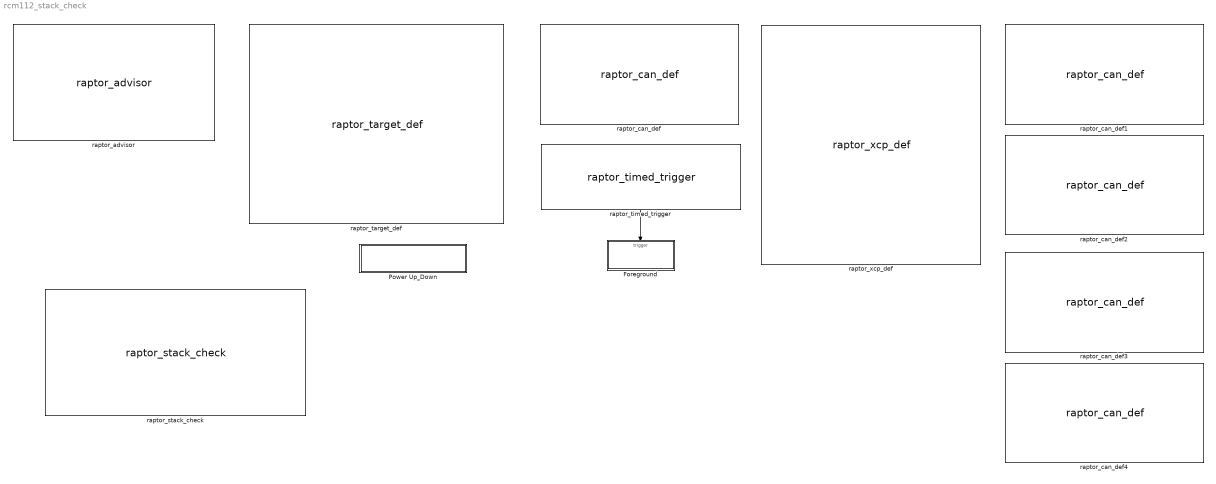
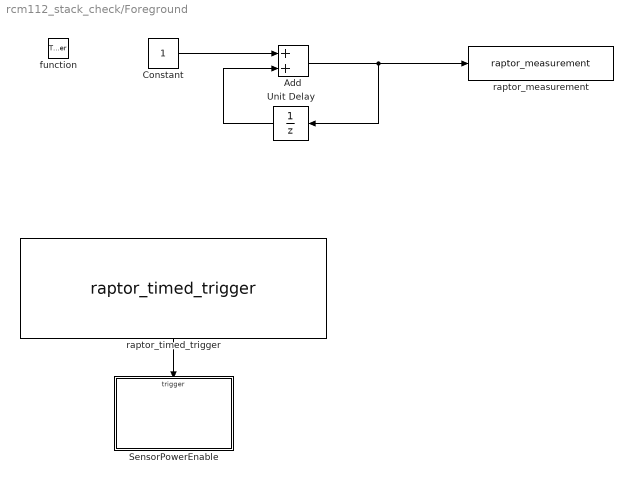
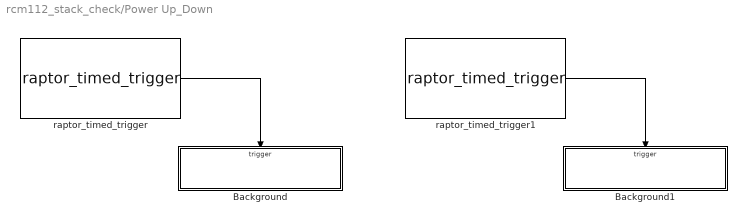
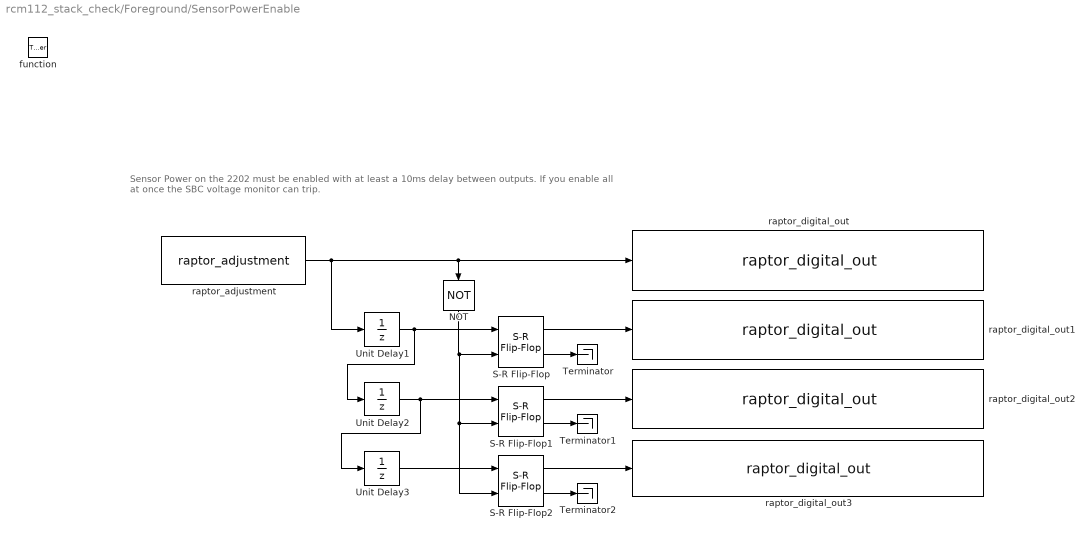
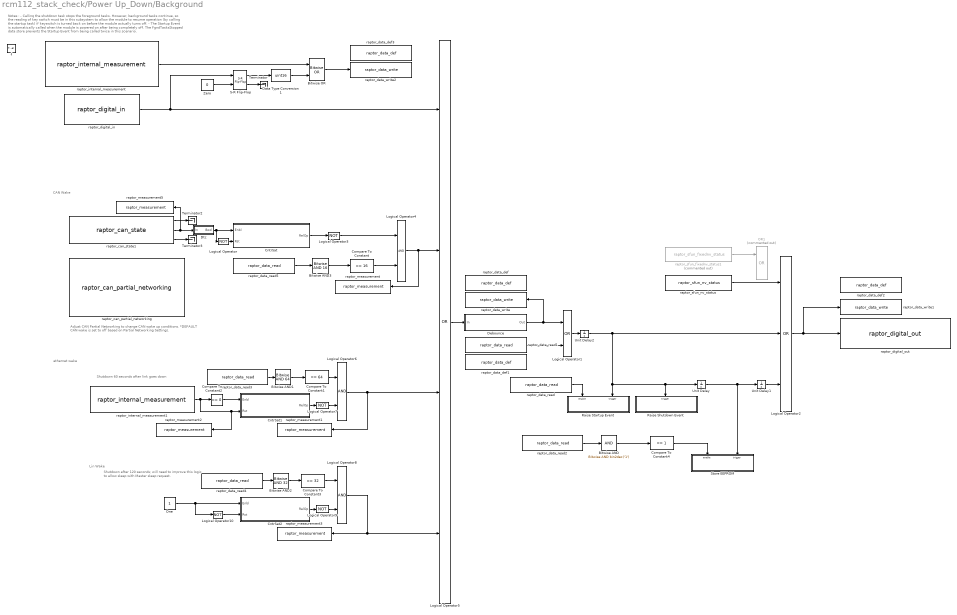
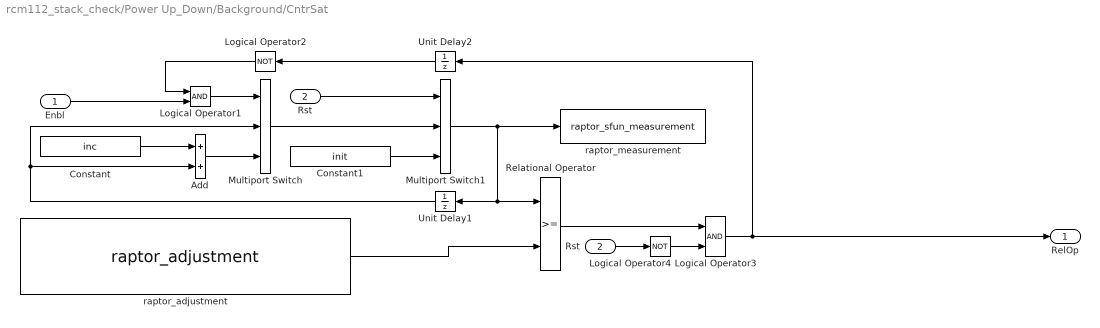
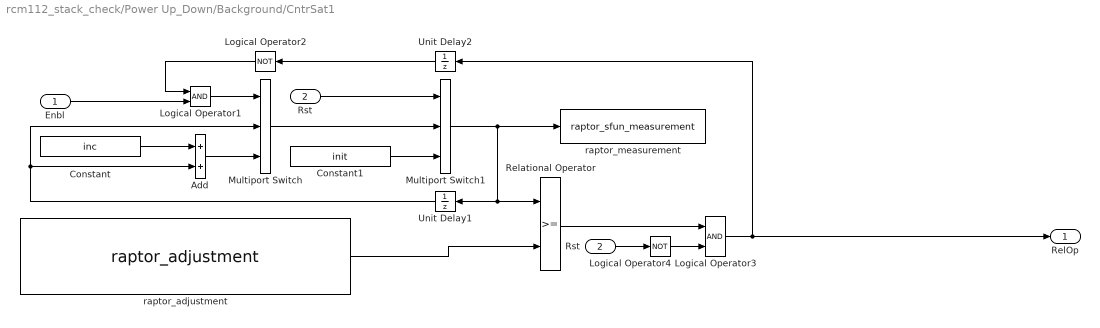
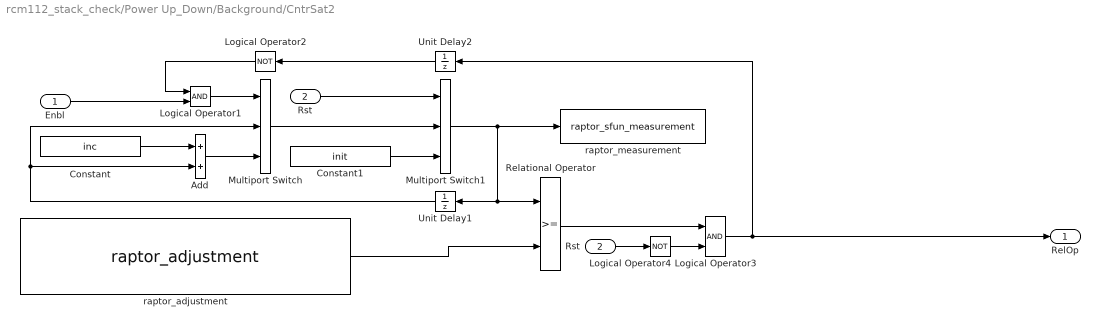
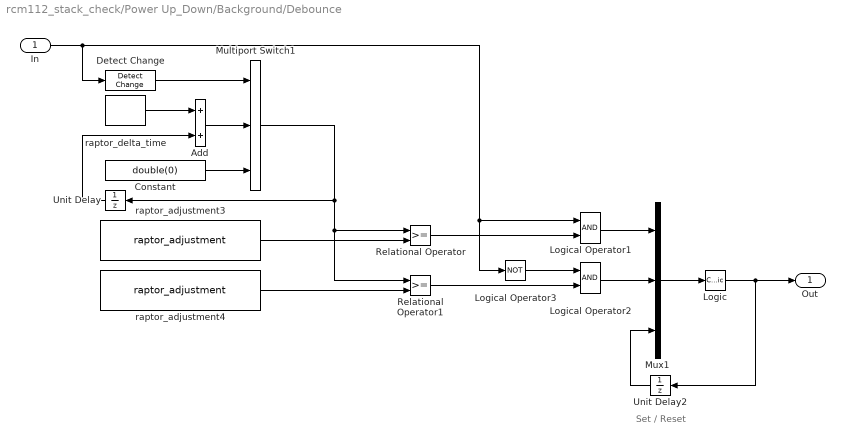
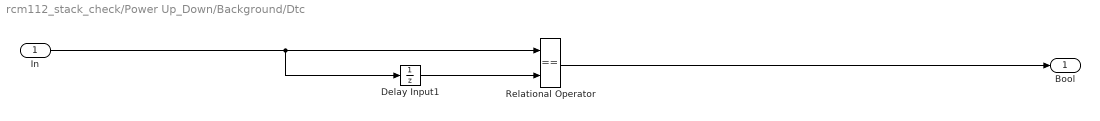
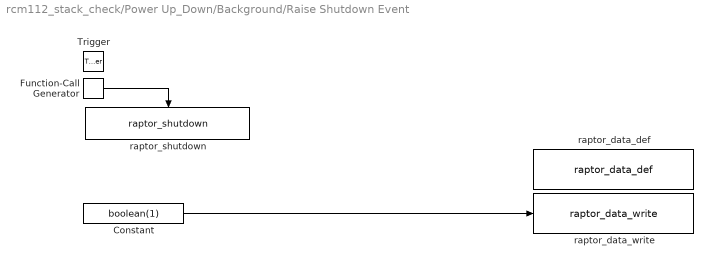
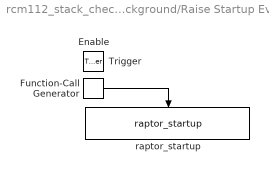
== system rcm112_stack_check/Power Up_Down/Background1 ==
  note: Notes : - Calling the shutdown task stops the foreground tasks. However, background tasks continue, so the reading of key switch must be in this subsystem to allow the module to resume operation (by calling the startup task) if keyswitch is turned back on before the module actually turns off. - The Startup Event is automatically called when the module is powered on after being completely off. The FgndTasksStopped data store prevents the Startup Event from being called twice in this scenario.
  f : TriggerPort  TriggerType=function-call  VariantControl=Variant  ZeroCross=off
  raptor_data_read1 : Raptor_lib/Data Storage/raptor_data_read  dataName='MPRD_EN'  dataShape=Scalar  idxSource=Input  idxRow=1  idxCol=1
  raptor_digital_out1 : Raptor_lib/Input & Output/raptor_digital_out  resourceValues=LSO1|MPRD_EN|POWER_HOLD|SENSOR_POWER_EN|(None)  resource=MPRD_EN  driverTypeValues=Enable  driverType=Enable
  wires:
  raptor_data_read1/1 -> raptor_digital_out1/1

== system rcm112_stack_check/Power Up_Down/Background/Store EEPROM ==
  Enable : EnablePort
  Trigger : TriggerPort  TriggerType=falling  VariantControl=Variant
  Function-Call Generator : simulink/Ports & Subsystems/Function-Call Generator  sample_time=-1  numberOfIterations=1  DisallowWideOutput=off
  raptor_store_nv : Raptor_lib/Data Storage/raptor_store_nv  null=0
  wires:
  Function-Call Generator/1 -> raptor_store_nv/Trigger

/*
 * File: rcm112_stack_check.c
 *
 * Code generated for Simulink model 'rcm112_stack_check'.
 *
 * Model version                  : 9.19
 * Simulink Coder version         : 9.9 (R2023a) 19-Nov-2022
 * C/C++ source code generated on : Wed Mar 27 13:31:34 2024
 *
 * Target selection: raptor.tlc
 * Embedded hardware selection: Freescale->MPC55xx
 * Code generation objectives: Unspecified
 * Validation result: Not run
 */

#include "rcm112_stack_check.h"
#include "rcm112_stack_check_private.h"
#include "rtwtypes.h"
#include "zero_crossing_types.h"
#include <string.h>

/* Block states (default storage) */
D_Work_rcm112_stack_check rcm112_stack_check_DWork;

/* Previous zero-crossings (trigger) states */
PrevZCSigStates_rcm112_stack_check rcm112_stack_check_PrevZCSigState;

/* Block : rcm112_stack_check/Foreground/raptor_timed_trigger */
void Timer_FGND_10MS_SensPower(void)
{
  /* Timer_FGND_10MS_SensPower  ------   Task_Core0_Fgnd  */
  {
    {
      rcm112_stack_check_SensorPowerEnable();
    }
  }
}

/* Block : rcm112_stack_check/raptor_timed_trigger */
void Timer_Foreground(void)
{
  /* Timer_Foreground  ------   Foreground  */
  {
    {
      rcm112_stack_check_Foreground();
    }
  }
}

/* Block : rcm112_stack_check/Power Up_Down/raptor_timed_trigger */
void Timer_Background_50MS(void)
{
  /* Timer_Background_50MS  ------   Background  */
  {
    {
      rcm112_stack_check_Background();
    }
  }
}

/* Block : rcm112_stack_check/Power Up_Down/raptor_timed_trigger1 */
void Timer_Background_50MS_SBN1H(void)
{
  /* Timer_Background_50MS_SBN1H  ------   Background  */
  {
    {
      rcm112_stack_check_Background1();
    }
  }
}

/* System initialize for function-call system: '<S2>/Background' */
void rcm112_stack_check_Background_Init(void)
{
  /* Start for S-Function (raptor_sfun_digital_in): '<S8>/raptor_digital_in' */

  /* S-Function Block: WAKE_INPUT1 */
  {
  }

  /* Start for S-Function (raptor_sfun_internal_measurement): '<S8>/raptor_internal_measurement1' */

  /* S-Function Block: EthLinkStatus */
  {
  }

  /* Start for S-Function (raptor_sfun_internal_measurement): '<S8>/raptor_internal_measurement' */

  /* S-Function Block: WAKE_SOURCE */
  {
  }

  /* Start for S-Function (raptor_sfun_digital_out): '<S8>/raptor_digital_out' */

  /* S-Function Block: POWER_HOLD */
  {
  }

  /* InitializeConditions for UnitDelay: '<S8>/Unit Delay2' */
  rcm112_stack_check_DWork.UnitDelay2_DSTATE_m = true;

  /* InitializeConditions for S-Function (raptor_sfun_delta_time): '<S18>/raptor_delta_time' */
  rcm112_stack_check_DWork.raptor_delta_time_DWORK1 = Bios_Rtos_GetTicksUs()/
    1000;

  /* InitializeConditions for UnitDelay: '<S18>/Unit Delay2' */
  rcm112_stack_check_DWork.UnitDelay2_DSTATE_l = true;
}

/* System reset for function-call system: '<S2>/Background' */
void rcm112_stack_check_Background_Reset(void)
{
  /* InitializeConditions for UnitDelay: '<S8>/Unit Delay2' */
  rcm112_stack_check_DWork.UnitDelay2_DSTATE_m = true;

  /* InitializeConditions for S-Function (raptor_sfun_delta_time): '<S18>/raptor_delta_time' */
  rcm112_stack_check_DWork.raptor_delta_time_DWORK1 = Bios_Rtos_GetTicksUs()/
    1000;

  /* InitializeConditions for UnitDelay: '<S18>/Unit Delay2' */
  rcm112_stack_check_DWork.UnitDelay2_DSTATE_l = true;
}

/* Output and update for function-call system: '<S2>/Background' */
void rcm112_stack_check_Background(void)
{
  /* local block i/o variables */
  real_T rtb_raptor_delta_time;
  uint32_T rtb_raptor_can_state1_o2;
  uint32_T rtb_raptor_can_state1_o3;
  int16_T rtb_raptor_can_state1_o1;
  boolean_T rtb_raptor_internal_measurement1;
  real_T rtb_MultiportSwitch1;
  uint32_T rtb_MultiportSwitch1_i;
  uint32_T rtb_MultiportSwitch1_l;
  uint32_T rtb_MultiportSwitch1_o;
  uint16_T rtb_raptor_internal_measurement;
  boolean_T rtb_Logic;
  boolean_T rtb_Logic_i_idx_0;
  boolean_T rtb_LogicalOperator2_o;
  boolean_T rtb_LogicalOperator3_c4;
  boolean_T rtb_LogicalOperator3_p;
  boolean_T rtb_LogicalOperator4_l;
  boolean_T rtb_LogicalOperator5;
  boolean_T rtb_LogicalOperator6;
  boolean_T rtb_LogicalOperator8;
  boolean_T rtb_RelationalOperator;
  boolean_T rtb_UnitDelay2;
  boolean_T rtb_UnitDelay_c;
  boolean_T rtb_raptor_digital_in;

  /* UnitDelay: '<S8>/Unit Delay2' */
  rtb_UnitDelay2 = rcm112_stack_check_DWork.UnitDelay2_DSTATE_m;

  /* Outputs for Triggered SubSystem: '<S8>/Raise Shutdown Event' incorporates:
   *  TriggerPort: '<S20>/Trigger'
   */
  if ((!rcm112_stack_check_DWork.UnitDelay2_DSTATE_m) &&
      (rcm112_stack_check_PrevZCSigState.RaiseShutdownEvent_Trig_ZCE !=
       ZERO_ZCSIG)) {
    /* S-Function (raptor_sfun_data_write): '<S20>/raptor_data_write' incorporates:
     *  Constant: '<S20>/Constant'
     */
    FgndTasksStopped_Data() = true;

    /* S-Function (fcgen): '<S20>/Function-Call Generator' incorporates:
     *  SubSystem: '<S20>/raptor_shutdown'
     */
    /* S-Function (raptor_sfun_shutdown): '<S25>/raptor_data_write' */
    /* S-Function Block */
    {
      extern void App_Shutdown(void);
      App_Shutdown();
    }

    /* End of Outputs for S-Function (fcgen): '<S20>/Function-Call Generator' */
  }

  /* End of UnitDelay: '<S8>/Unit Delay2' */
  rcm112_stack_check_PrevZCSigState.RaiseShutdownEvent_Trig_ZCE = rtb_UnitDelay2;

  /* End of Outputs for SubSystem: '<S8>/Raise Shutdown Event' */
  /* Outputs for Enabled and Triggered SubSystem: '<S8>/Raise Startup Event' incorporates:
   *  EnablePort: '<S21>/Enable'
   *  TriggerPort: '<S21>/Trigger'
   */
  if (FgndTasksStopped_Data() && (rtb_UnitDelay2 &&
       (rcm112_stack_check_PrevZCSigState.RaiseStartupEvent_Trig_ZCE !=
        POS_ZCSIG))) {
    /* S-Function (fcgen): '<S21>/Function-Call Generator' incorporates:
     *  SubSystem: '<S21>/raptor_startup'
     */
    /* S-Function (raptor_sfun_startup): '<S26>/raptor_data_write' */
    /* S-Function Block */
    {
      extern void App_Startup(void);
      App_Startup();
    }

    /* End of Outputs for S-Function (fcgen): '<S21>/Function-Call Generator' */
  }

  /* End of S-Function (raptor_sfun_data_read): '<S8>/raptor_data_read' */

  /* Outputs for Triggered SubSystem: '<S8>/Raise Shutdown Event' incorporates:
   *  TriggerPort: '<S20>/Trigger'
   */
  rcm112_stack_check_PrevZCSigState.RaiseStartupEvent_Trig_ZCE = rtb_UnitDelay2;

  /* End of Outputs for SubSystem: '<S8>/Raise Shutdown Event' */
  /* End of Outputs for SubSystem: '<S8>/Raise Startup Event' */
  /* UnitDelay: '<S8>/Unit Delay' */
  rtb_UnitDelay_c = rcm112_stack_check_DWork.UnitDelay_DSTATE_a;

  /* Outputs for Enabled and Triggered SubSystem: '<S8>/Store EEPROM' incorporates:
   *  EnablePort: '<S23>/Enable'
   *  TriggerPort: '<S23>/Trigger'
   */
  /* RelationalOperator: '<S17>/Compare' incorporates:
   *  Constant: '<S17>/Constant'
   *  S-Function (raptor_sfun_data_read): '<S8>/raptor_data_read2'
   *  S-Function (sfix_bitop): '<S8>/Bitwise AND'
   *  UnitDelay: '<S8>/Unit Delay'
   */
  if (((((uint16_T)Wake_Source_Data()) & 1) == 1) &&
      ((!rcm112_stack_check_DWork.UnitDelay_DSTATE_a) &&
       (rcm112_stack_check_PrevZCSigState.StoreEEPROM_Trig_ZCE != ZERO_ZCSIG)))
  {
    /* S-Function (fcgen): '<S23>/Function-Call Generator' incorporates:
     *  SubSystem: '<S23>/raptor_store_nv'
     */
    /* S-Function (raptor_sfun_store_nv): '<S27>/raptor_data_write' */
    /* S-Function Block */
    {
      App_EE_Store();
    }

    /* End of Outputs for S-Function (fcgen): '<S23>/Function-Call Generator' */
  }

  /* End of RelationalOperator: '<S17>/Compare' */
  rcm112_stack_check_PrevZCSigState.StoreEEPROM_Trig_ZCE = rtb_UnitDelay_c;

  /* End of Outputs for SubSystem: '<S8>/Store EEPROM' */

  /* S-Function (raptor_sfun_digital_in): '<S8>/raptor_digital_in' */
  /* S-Function Block: WAKE_INPUT1 */
  {
    {
      sint32 KEYSW_M_value;
      Bios_Adc_GetValue(KEYSW_M, &KEYSW_M_value);
      rtb_raptor_digital_in = ((KEYSW_M_value > 200) ? 1 : 0);
    }
  }

  /* S-Function (raptor_sfun_can_state): '<S8>/raptor_can_state1' */
  /* S-Function Block: <S8>/raptor_can_state1 */
  {
    rtb_raptor_can_state1_o1 = Bios_Can_GetError(BIOS_MCAN_5);
    Bios_Can_GetBusState(BIOS_MCAN_5, &rtb_raptor_can_state1_o2,
                         &rtb_raptor_can_state1_o3);
  }

  /* Logic: '<S8>/Logical Operator' incorporates:
   *  Logic: '<S10>/Logical Operator1'
   *  MultiPortSwitch: '<S10>/Multiport Switch1'
   *  RelationalOperator: '<S19>/Relational Operator'
   *  UnitDelay: '<S19>/Delay Input1'
   */
  rtb_LogicalOperator4_l = (rtb_raptor_can_state1_o2 !=
    rcm112_stack_check_DWork.DelayInput1_DSTATE);

  /* MultiPortSwitch: '<S10>/Multiport Switch1' incorporates:
   *  Constant: '<S10>/Constant1'
   *  Logic: '<S10>/Logical Operator4'
   */
  rtb_RelationalOperator = !rtb_LogicalOperator4_l;
  if (rtb_RelationalOperator) {
    /* MultiPortSwitch: '<S10>/Multiport Switch' incorporates:
     *  Constant: '<S10>/Constant'
     *  Logic: '<S10>/Logical Operator1'
     *  Sum: '<S10>/Add'
     *  UnitDelay: '<S10>/Unit Delay1'
     *  UnitDelay: '<S10>/Unit Delay2'
     */
    if (rcm112_stack_check_DWork.UnitDelay2_DSTATE_j || rtb_LogicalOperator4_l)
    {
      rtb_MultiportSwitch1_i = rcm112_stack_check_DWork.UnitDelay1_DSTATE;
    } else {
      rtb_MultiportSwitch1_i = rcm112_stack_check_DWork.UnitDelay1_DSTATE + 1U;
    }

    /* End of MultiPortSwitch: '<S10>/Multiport Switch' */
  } else {
    rtb_MultiportSwitch1_i = 0U;
  }

  /* Logic: '<S10>/Logical Operator3' incorporates:
   *  RelationalOperator: '<S10>/Relational Operator'
   *  S-Function (raptor_sfun_adjustment): '<S10>/raptor_adjustment'
   */
  rtb_RelationalOperator = ((rtb_MultiportSwitch1_i >=
    (Wake_CAN5_SleepDelayTime_Data())) && rtb_RelationalOperator);

  /* Logic: '<S8>/Logical Operator4' incorporates:
   *  Constant: '<S13>/Constant'
   *  Logic: '<S8>/Logical Operator3'
   *  RelationalOperator: '<S13>/Compare'
   *  S-Function (raptor_sfun_data_read): '<S8>/raptor_data_read5'
   *  S-Function (sfix_bitop): '<S8>/Bitwise AND3'
   */
  rtb_LogicalOperator4_l = ((!rtb_RelationalOperator) && ((((uint16_T)
    Wake_Source_Data()) & 16) == 16));

  /* S-Function (raptor_sfun_internal_measurement): '<S8>/raptor_internal_measurement1' */
  /* S-Function Block: EthLinkStatus */
  {
    {
      uint8 Bios_Eth_GetLinkStatus (void);
      rtb_raptor_internal_measurement1 = (boolean_T)Bios_Eth_GetLinkStatus();
    }
  }

  /* MultiPortSwitch: '<S11>/Multiport Switch1' incorporates:
   *  Constant: '<S11>/Constant1'
   */
  if (!rtb_raptor_internal_measurement1) {
    /* MultiPortSwitch: '<S11>/Multiport Switch' incorporates:
     *  Constant: '<S11>/Constant'
     *  Logic: '<S11>/Logical Operator1'
     *  RelationalOperator: '<S15>/Compare'
     *  Sum: '<S11>/Add'
     *  UnitDelay: '<S11>/Unit Delay1'
     *  UnitDelay: '<S11>/Unit Delay2'
     */
    if (rcm112_stack_check_DWork.UnitDelay2_DSTATE_b ||
        rtb_raptor_internal_measurement1) {
      rtb_MultiportSwitch1_l = rcm112_stack_check_DWork.UnitDelay1_DSTATE_m;
    } else {
      rtb_MultiportSwitch1_l = rcm112_stack_check_DWork.UnitDelay1_DSTATE_m + 1U;
    }

    /* End of MultiPortSwitch: '<S11>/Multiport Switch' */
  } else {
    rtb_MultiportSwitch1_l = 0U;
  }

  /* End of MultiPortSwitch: '<S11>/Multiport Switch1' */
  /* Logic: '<S11>/Logical Operator3' incorporates:
   *  Logic: '<S11>/Logical Operator4'
   *  RelationalOperator: '<S11>/Relational Operator'
   *  S-Function (raptor_sfun_adjustment): '<S11>/raptor_adjustment'
   */
  rtb_LogicalOperator3_c4 = ((rtb_MultiportSwitch1_l >=
    (Wake_ETH_SleepDelayTime_Data())) && (!rtb_raptor_internal_measurement1));

  /* Logic: '<S8>/Logical Operator6' incorporates:
   *  Constant: '<S14>/Constant'
   *  Logic: '<S8>/Logical Operator7'
   *  RelationalOperator: '<S14>/Compare'
   *  S-Function (raptor_sfun_data_read): '<S8>/raptor_data_read3'
   *  S-Function (sfix_bitop): '<S8>/Bitwise AND1'
   */
  rtb_LogicalOperator6 = (((((uint16_T)Wake_Source_Data()) & 64) == 64) &&
    (!rtb_LogicalOperator3_c4));

  /* MultiPortSwitch: '<S12>/Multiport Switch1' incorporates:
   *  Constant: '<S12>/Constant1'
   */
  if (!rcm112_stack_check_ConstB.LogicalOperator10) {
    /* MultiPortSwitch: '<S12>/Multiport Switch' incorporates:
     *  Constant: '<S12>/Constant'
     *  Sum: '<S12>/Add'
     *  UnitDelay: '<S12>/Unit Delay1'
     *  UnitDelay: '<S12>/Unit Delay2'
     */
    if (rcm112_stack_check_DWork.UnitDelay2_DSTATE_n) {
      rtb_MultiportSwitch1_o = rcm112_stack_check_DWork.UnitDelay1_DSTATE_g;
    } else {
      rtb_MultiportSwitch1_o = rcm112_stack_check_DWork.UnitDelay1_DSTATE_g + 1U;
    }

    /* End of MultiPortSwitch: '<S12>/Multiport Switch' */
  } else {
    rtb_MultiportSwitch1_o = 0U;
  }

  /* End of MultiPortSwitch: '<S12>/Multiport Switch1' */
  /* Logic: '<S12>/Logical Operator3' incorporates:
   *  RelationalOperator: '<S12>/Relational Operator'
   *  S-Function (raptor_sfun_adjustment): '<S12>/raptor_adjustment'
   */
  rtb_LogicalOperator3_p = ((rtb_MultiportSwitch1_o >=
    (Wake_LIN2_SleepDelayTime_Data())) &&
    rcm112_stack_check_ConstB.LogicalOperator4);

  /* Logic: '<S8>/Logical Operator8' incorporates:
   *  Constant: '<S16>/Constant'
   *  Logic: '<S8>/Logical Operator9'
   *  RelationalOperator: '<S16>/Compare'
   *  S-Function (raptor_sfun_data_read): '<S8>/raptor_data_read4'
   *  S-Function (sfix_bitop): '<S8>/Bitwise AND2'
   */
  rtb_LogicalOperator8 = (((((uint16_T)Wake_Source_Data()) & 32) == 32) &&
    (!rtb_LogicalOperator3_p));

  /* Logic: '<S8>/Logical Operator5' */
  rtb_LogicalOperator5 = (rtb_raptor_digital_in || rtb_LogicalOperator4_l ||
    rtb_LogicalOperator6 || rtb_LogicalOperator8);

  /* S-Function (raptor_sfun_delta_time): '<S18>/raptor_delta_time' */
  {
    rtb_raptor_delta_time = (raptor_GetDeltaTime_ms((uint32_T*)
      &rcm112_stack_check_DWork.raptor_delta_time_DWORK1) * 0.001);
  }

  /* MultiPortSwitch: '<S18>/Multiport Switch1' incorporates:
   *  Constant: '<S18>/Constant'
   *  RelationalOperator: '<S24>/FixPt Relational Operator'
   *  Sum: '<S18>/Add'
   *  UnitDelay: '<S18>/Unit Delay'
   *  UnitDelay: '<S24>/Delay Input1'
   */
  if (rtb_LogicalOperator5 == rcm112_stack_check_DWork.DelayInput1_DSTATE_h) {
    rtb_MultiportSwitch1 = rtb_raptor_delta_time +
      rcm112_stack_check_DWork.UnitDelay_DSTATE_j;
  } else {
    rtb_MultiportSwitch1 = 0.0;
  }

  /* End of MultiPortSwitch: '<S18>/Multiport Switch1' */
  /* UnitDelay: '<S18>/Unit Delay2' */
  rtb_LogicalOperator2_o = rcm112_stack_check_DWork.UnitDelay2_DSTATE_l;

  /* CombinatorialLogic: '<S18>/Logic' incorporates:
   *  Logic: '<S18>/Logical Operator1'
   *  Logic: '<S18>/Logical Operator2'
   *  Logic: '<S18>/Logical Operator3'
   *  RelationalOperator: '<S18>/Relational Operator'
   *  RelationalOperator: '<S18>/Relational Operator1'
   *  S-Function (raptor_sfun_adjustment): '<S18>/raptor_adjustment3'
   *  S-Function (raptor_sfun_adjustment): '<S18>/raptor_adjustment4'
   */
  rtb_Logic = rcm112_stack_check_ConstP.Logic_table[((((uint32_T)
    (rtb_LogicalOperator5 && (rtb_MultiportSwitch1 >= (KeySwHiTimeThr_Data()))) <<
    1) + (uint32_T)((!rtb_LogicalOperator5) && (rtb_MultiportSwitch1 >=
    (KeySwLoTimeThr_Data())))) << 1) + rtb_LogicalOperator2_o];

  /* S-Function (raptor_sfun_data_write): '<S8>/raptor_data_write' */
  KeySw_Bgnd_Data() = rtb_Logic;

  /* S-Function (raptor_sfun_nv_status): '<S8>/raptor_sfun_nv_status' */
  /* S-Function Block */
  {
    rtb_LogicalOperator2_o = (EEPROM_State_Data() == EE_STORE_IN_PROGESS);
  }

  /* Logic: '<S8>/Logical Operator2' incorporates:
   *  UnitDelay: '<S8>/Unit Delay1'
   */
  rtb_LogicalOperator2_o = (rtb_LogicalOperator2_o || rtb_UnitDelay2 ||
    rcm112_stack_check_DWork.UnitDelay1_DSTATE_f);

  /* S-Function (raptor_sfun_data_write): '<S8>/raptor_data_write1' */
  MPRD_EN_Data() = rtb_LogicalOperator2_o;

  /* S-Function (raptor_sfun_internal_measurement): '<S8>/raptor_internal_measurement' */
  /* S-Function Block: WAKE_SOURCE */
  {
    extern uint16 Bios_Mcu_GetWakeUpReason(void);
    rtb_raptor_internal_measurement = (uint16_t)Bios_Mcu_GetWakeUpReason();
  }

  /* CombinatorialLogic: '<S22>/Logic' incorporates:
   *  Memory: '<S22>/Memory'
   */
  rtb_Logic_i_idx_0 = rcm112_stack_check_ConstP.pooled42[((uint32_T)
    rtb_raptor_digital_in << 2) +
    rcm112_stack_check_DWork.Memory_PreviousInput_c];

  /* S-Function (sfix_bitop): '<S8>/Bitwise OR' incorporates:
   *  DataTypeConversion: '<S8>/Data Type Conversion1'
   */
  rtb_raptor_internal_measurement |= rtb_Logic_i_idx_0;

  /* S-Function (raptor_sfun_data_write): '<S8>/raptor_data_write2' */
  Wake_Source_Data() = rtb_raptor_internal_measurement;

  /* S-Function (raptor_sfun_digital_out): '<S8>/raptor_digital_out' */
  /* S-Function Block: POWER_HOLD */
  {
    {
      static uint8_T prevInput = 0U;
      if (rtb_LogicalOperator2_o == 0U && prevInput == 1U) {
        Module_Shutdown(1);
      }

      prevInput = rtb_LogicalOperator2_o;
    }
  }

  /* S-Function (raptor_sfun_measurement): '<S8>/raptor_measurement' */
  CANWakeIndicator_Data() = rtb_LogicalOperator4_l;

  /* S-Function (raptor_sfun_measurement): '<S8>/raptor_measurement1' */
  EthWakeIndicator_Data() = rtb_LogicalOperator6;

  /* S-Function (raptor_sfun_measurement): '<S8>/raptor_measurement2' */
  EthLinkStatus_Data() = rtb_raptor_internal_measurement1;

  /* S-Function (raptor_sfun_measurement): '<S8>/raptor_measurement3' */
  LINWakeIndicator_Data() = rtb_LogicalOperator8;

  /* S-Function (raptor_sfun_measurement): '<S8>/raptor_measurement5' */
  Wake_CAN5_RxCount_Data() = rtb_raptor_can_state1_o2;

  /* S-Function (raptor_sfun_measurement): '<S10>/raptor_measurement' */
  Wake_CAN5_SleepDelayTTmr_Data() = rtb_MultiportSwitch1_i;

  /* S-Function (raptor_sfun_measurement): '<S11>/raptor_measurement' */
  Wake_ETH_SleepDelayTTmr_Data() = rtb_MultiportSwitch1_l;

  /* S-Function (raptor_sfun_measurement): '<S12>/raptor_measurement' */
  Wake_LIN2_SleepDelayTTmr_Data() = rtb_MultiportSwitch1_o;

  /* Logic: '<S8>/Logical Operator1' incorporates:
   *  S-Function (raptor_sfun_data_read): '<S8>/raptor_data_read1'
   */
  rtb_raptor_digital_in = (rtb_Logic || KeepModuleOn_Data());

  /* Update for UnitDelay: '<S8>/Unit Delay2' */
  rcm112_stack_check_DWork.UnitDelay2_DSTATE_m = rtb_raptor_digital_in;

  /* Update for UnitDelay: '<S8>/Unit Delay' */
  rcm112_stack_check_DWork.UnitDelay_DSTATE_a = rtb_UnitDelay2;

  /* Update for UnitDelay: '<S19>/Delay Input1' */
  rcm112_stack_check_DWork.DelayInput1_DSTATE = rtb_raptor_can_state1_o2;

  /* Update for UnitDelay: '<S10>/Unit Delay2' */
  rcm112_stack_check_DWork.UnitDelay2_DSTATE_j = rtb_RelationalOperator;

  /* Update for UnitDelay: '<S10>/Unit Delay1' */
  rcm112_stack_check_DWork.UnitDelay1_DSTATE = rtb_MultiportSwitch1_i;

  /* Update for UnitDelay: '<S11>/Unit Delay2' */
  rcm112_stack_check_DWork.UnitDelay2_DSTATE_b = rtb_LogicalOperator3_c4;

  /* Update for UnitDelay: '<S11>/Unit Delay1' */
  rcm112_stack_check_DWork.UnitDelay1_DSTATE_m = rtb_MultiportSwitch1_l;

  /* Update for UnitDelay: '<S12>/Unit Delay2' */
  rcm112_stack_check_DWork.UnitDelay2_DSTATE_n = rtb_LogicalOperator3_p;

  /* Update for UnitDelay: '<S12>/Unit Delay1' */
  rcm112_stack_check_DWork.UnitDelay1_DSTATE_g = rtb_MultiportSwitch1_o;

  /* Update for UnitDelay: '<S24>/Delay Input1' */
  rcm112_stack_check_DWork.DelayInput1_DSTATE_h = rtb_LogicalOperator5;

  /* Update for UnitDelay: '<S18>/Unit Delay' */
  rcm112_stack_check_DWork.UnitDelay_DSTATE_j = rtb_MultiportSwitch1;

  /* Update for UnitDelay: '<S18>/Unit Delay2' */
  rcm112_stack_check_DWork.UnitDelay2_DSTATE_l = rtb_Logic;

  /* Update for UnitDelay: '<S8>/Unit Delay1' */
  rcm112_stack_check_DWork.UnitDelay1_DSTATE_f = rtb_UnitDelay_c;

  /* Update for Memory: '<S22>/Memory' */
  rcm112_stack_check_DWork.Memory_PreviousInput_c = rtb_Logic_i_idx_0;
}

/* System initialize for function-call system: '<S2>/Background1' */
void rcm112_stack_check_Background1_Init(void)
{
  /* Start for S-Function (raptor_sfun_digital_out): '<S9>/raptor_digital_out1' */

  /* S-Function Block: MPRD_EN */
  {
  }
}

/* Output and update for function-call system: '<S2>/Background1' */
void rcm112_stack_check_Background1(void)
{
  /* S-Function (raptor_sfun_data_read): '<S9>/raptor_data_read1' */
  /* S-Function (raptor_sfun_digital_out): '<S9>/raptor_digital_out1' incorporates:
   *  S-Function (raptor_sfun_data_read): '<S9>/raptor_data_read1'
   */
  /* S-Function Block: MPRD_EN */
  {
    {
      Bios_Dio_SetOutputLevel(MPRD_EN, MPRD_EN_Data());
    }
  }
}

/* System initialize for function-call system: '<S1>/SensorPowerEnable' */
void rcm112_stack_check_SensorPowerEnable_Init(void)
{
  /* Start for S-Function (raptor_sfun_digital_out): '<S4>/raptor_digital_out' */

  /* S-Function Block: SENSOR_POWER_A_EN */
  {
  }

  /* Start for S-Function (raptor_sfun_digital_out): '<S4>/raptor_digital_out1' */

  /* S-Function Block: SENSOR_POWER_B_EN */
  {
  }

  /* Start for S-Function (raptor_sfun_digital_out): '<S4>/raptor_digital_out2' */

  /* S-Function Block: SENSOR_POWER_C_EN */
  {
  }

  /* Start for S-Function (raptor_sfun_digital_out): '<S4>/raptor_digital_out3' */

  /* S-Function Block: SENSOR_POWER_D_EN */
  {
  }
}

/* Output and update for function-call system: '<S1>/SensorPowerEnable' */
void rcm112_stack_check_SensorPowerEnable(void)
{
  /* local block i/o variables */
  boolean_T rtb_raptor_adjustment_m;
  int32_T rowIdx;
  boolean_T rtb_Logic[2];
  boolean_T rtb_Logic_g[2];
  boolean_T rtb_Logic_o[2];
  boolean_T rtb_NOT;
  boolean_T rtb_UnitDelay1_a;
  boolean_T rtb_UnitDelay2;

  /* S-Function (raptor_sfun_adjustment): '<S4>/raptor_adjustment' */
  rtb_raptor_adjustment_m = (SensorPowerEnable_Data());

  /* S-Function (raptor_sfun_digital_out): '<S4>/raptor_digital_out' */
  /* S-Function Block: SENSOR_POWER_A_EN */
  {
    {
      Bios_Dio_SetOutputLevel(SENSOR_POWER_A_EN_M, rtb_raptor_adjustment_m);
    }
  }

  /* UnitDelay: '<S4>/Unit Delay1' */
  rtb_UnitDelay1_a = rcm112_stack_check_DWork.UnitDelay1_DSTATE_c;

  /* Logic: '<S4>/NOT' */
  rtb_NOT = !rtb_raptor_adjustment_m;

  /* CombinatorialLogic: '<S5>/Logic' incorporates:
   *  Memory: '<S5>/Memory'
   *  UnitDelay: '<S4>/Unit Delay1'
   */
  rowIdx = (int32_T)(((((uint32_T)rcm112_stack_check_DWork.UnitDelay1_DSTATE_c <<
                        1) + rtb_NOT) << 1) +
                     rcm112_stack_check_DWork.Memory_PreviousInput);
  rtb_Logic[0U] = rcm112_stack_check_ConstP.pooled42[(uint32_T)rowIdx];
  rtb_Logic[1U] = rcm112_stack_check_ConstP.pooled42[(uint32_T)rowIdx + 8U];

  /* S-Function (raptor_sfun_digital_out): '<S4>/raptor_digital_out1' */
  /* S-Function Block: SENSOR_POWER_B_EN */
  {
    {
      Bios_Dio_SetOutputLevel(SENSOR_POWER_B_EN_M, rtb_Logic[0]);
    }
  }

  /* UnitDelay: '<S4>/Unit Delay2' */
  rtb_UnitDelay2 = rcm112_stack_check_DWork.UnitDelay2_DSTATE;

  /* CombinatorialLogic: '<S6>/Logic' incorporates:
   *  Memory: '<S6>/Memory'
   *  UnitDelay: '<S4>/Unit Delay2'
   */
  rowIdx = (int32_T)(((((uint32_T)rcm112_stack_check_DWork.UnitDelay2_DSTATE <<
                        1) + rtb_NOT) << 1) +
                     rcm112_stack_check_DWork.Memory_PreviousInput_b);
  rtb_Logic_o[0U] = rcm112_stack_check_ConstP.pooled42[(uint32_T)rowIdx];
  rtb_Logic_o[1U] = rcm112_stack_check_ConstP.pooled42[(uint32_T)rowIdx + 8U];

  /* S-Function (raptor_sfun_digital_out): '<S4>/raptor_digital_out2' */
  /* S-Function Block: SENSOR_POWER_C_EN */
  {
    {
      Bios_Dio_SetOutputLevel(SENSOR_POWER_C_EN_M, rtb_Logic_o[0]);
    }
  }

  /* CombinatorialLogic: '<S7>/Logic' incorporates:
   *  Memory: '<S7>/Memory'
   *  UnitDelay: '<S4>/Unit Delay3'
   */
  rowIdx = (int32_T)(((((uint32_T)rcm112_stack_check_DWork.UnitDelay3_DSTATE <<
                        1) + rtb_NOT) << 1) +
                     rcm112_stack_check_DWork.Memory_PreviousInput_b4);
  rtb_Logic_g[0U] = rcm112_stack_check_ConstP.pooled42[(uint32_T)rowIdx];
  rtb_Logic_g[1U] = rcm112_stack_check_ConstP.pooled42[(uint32_T)rowIdx + 8U];

  /* S-Function (raptor_sfun_digital_out): '<S4>/raptor_digital_out3' */
  /* S-Function Block: SENSOR_POWER_D_EN */
  {
    {
      Bios_Dio_SetOutputLevel(SENSOR_POWER_D_EN_M, rtb_Logic_g[0]);
    }
  }

  /* Update for UnitDelay: '<S4>/Unit Delay1' */
  rcm112_stack_check_DWork.UnitDelay1_DSTATE_c = rtb_raptor_adjustment_m;

  /* Update for Memory: '<S5>/Memory' */
  rcm112_stack_check_DWork.Memory_PreviousInput = rtb_Logic[0];

  /* Update for UnitDelay: '<S4>/Unit Delay2' */
  rcm112_stack_check_DWork.UnitDelay2_DSTATE = rtb_UnitDelay1_a;

  /* Update for Memory: '<S6>/Memory' */
  rcm112_stack_check_DWork.Memory_PreviousInput_b = rtb_Logic_o[0];

  /* Update for UnitDelay: '<S4>/Unit Delay3' */
  rcm112_stack_check_DWork.UnitDelay3_DSTATE = rtb_UnitDelay2;

  /* Update for Memory: '<S7>/Memory' */
  rcm112_stack_check_DWork.Memory_PreviousInput_b4 = rtb_Logic_g[0];
}

/* System initialize for function-call system: '<Root>/Foreground' */
void rcm112_stack_check_Foreground_Init(void)
{
  /* SystemInitialize for S-Function (raptor_sfun_timed_trigger): '<S1>/raptor_timed_trigger' incorporates:
   *  SubSystem: '<S1>/SensorPowerEnable'
   */
  rcm112_stack_check_SensorPowerEnable_Init();

  /* End of SystemInitialize for S-Function (raptor_sfun_timed_trigger): '<S1>/raptor_timed_trigger' */
}

/* Enable for function-call system: '<Root>/Foreground' */
void rcm112_stack_check_Foreground_Enable(void)
{
  /* Enable for S-Function (raptor_sfun_timed_trigger): '<S1>/raptor_timed_trigger' */

  /* Level2 S-Function Block: '<S1>/raptor_timed_trigger' (raptor_sfun_timed_trigger) */

  /* Enable Subsystem */

  /* End of Enable for S-Function (raptor_sfun_timed_trigger): '<S1>/raptor_timed_trigger' */
}

/* Output and update for function-call system: '<Root>/Foreground' */
void rcm112_stack_check_Foreground(void)
{
  real_T rtb_Add_j;

  /* Sum: '<S1>/Add' incorporates:
   *  Constant: '<S1>/Constant'
   *  UnitDelay: '<S1>/Unit Delay'
   */
  rtb_Add_j = rcm112_stack_check_DWork.UnitDelay_DSTATE + 1.0;

  /* S-Function (raptor_sfun_measurement): '<S1>/raptor_measurement' */
  Counter_Data() = rtb_Add_j;

  /* Update for UnitDelay: '<S1>/Unit Delay' */
  rcm112_stack_check_DWork.UnitDelay_DSTATE = rtb_Add_j;
}

/* Model step function */
void rcm112_stack_check_step(void)
{
  /* S-Function (raptor_sfun_target_def): '<Root>/raptor_target_def' */

  /*
   * New Eagle LLC 2011
   */
}
